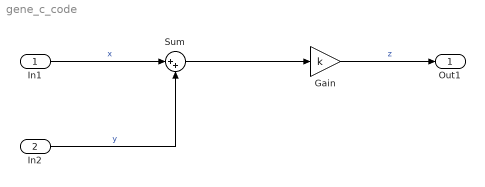
/*
 * Academic License - for use in teaching, academic research, and meeting
 * course requirements at degree granting institutions only.  Not for
 * government, commercial, or other organizational use.
 *
 * File: gene_c_code.c
 *
 * Code generated for Simulink model 'gene_c_code'.
 *
 * Model version                  : 1.6
 * Simulink Coder version         : 9.6 (R2021b) 14-May-2021
 * C/C++ source code generated on : Fri Sep  9 17:47:31 2022
 *
 * Target selection: ert.tlc
 * Embedded hardware selection: Intel->x86-64 (Windows64)
 * Code generation objectives: Unspecified
 * Validation result: Not run
 */

#include "gene_c_code.h"
#include "gene_c_code_private.h"

/* Exported block signals */
real32_T y;                            /* '<Root>/In2' */
real32_T z;                            /* '<Root>/Gain' */

/* Exported data definition */
#pragma cal_section begin

/* Definition for custom storage class: mycsc */
const volatile real32_T k = 2.0F;      /* Referenced by: '<Root>/Gain' */

#pragma cal_section end

/* Real-time model */
static RT_MODEL_gene_c_code_T gene_c_code_M_;
RT_MODEL_gene_c_code_T *const gene_c_code_M = &gene_c_code_M_;

/* Model step function */
void gene_c_code_step(void)
{
  /* Gain: '<Root>/Gain' incorporates:
   *  Inport: '<Root>/In1'
   *  Inport: '<Root>/In2'
   *  Sum: '<Root>/Sum'
   */
  z = (x + y) * k;
}
